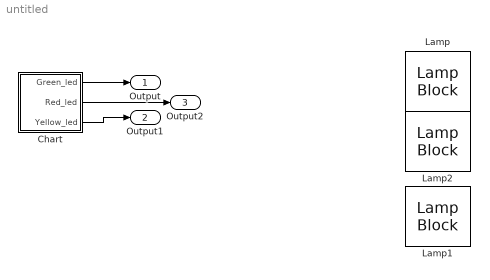
== stateflow chart untitled/Chart ==
  state Yellow
    en:
    Yellow_led=1;
    Red_led=0;
    Green_led=0;
    du:
    Yellow_led=1;
    ex:
    Yellow_led=0;
  state Red
    en:
    Red_led=1;
    Yellow_led=0;
    Green_led=0;
    du:
    Red_led=1;
    ex:
    Red_led=0;
  state Green
    en:
    Green_led=1;
    Red_led=0;
    Yellow_led=0;
    du:
    Green_led=1;
    ex:
    Green_led=0;
  (default) -> Red
  Red -> Yellow : [after(3,sec)]
  Green -> Red : [after(3,sec)]
  Yellow -> Green : [after(3,sec)]
  data: Green_led output double; Red_led output double; Yellow_led output double

/*
 * File: untitled.c
 *
 * Code generated for Simulink model 'untitled'.
 *
 * Model version                  : 1.6
 * Simulink Coder version         : 9.0 (R2018b) 24-May-2018
 * C/C++ source code generated on : Fri Mar 11 03:16:13 2022
 *
 * Target selection: ert.tlc
 * Embedded hardware selection: Intel->x86-64 (Windows64)
 * Code generation objectives: Unspecified
 * Validation result: Not run
 */

#include "untitled.h"
#include "untitled_private.h"

/* Named constants for Chart: '<Root>/Chart' */
#define untitled_IN_Green              ((uint8_T)1U)
#define untitled_IN_NO_ACTIVE_CHILD    ((uint8_T)0U)
#define untitled_IN_Red                ((uint8_T)2U)
#define untitled_IN_Yellow             ((uint8_T)3U)

/* Block states (default storage) */
DW_untitled_T untitled_DW;

/* External outputs (root outports fed by signals with default storage) */
ExtY_untitled_T untitled_Y;

/* Real-time model */
RT_MODEL_untitled_T untitled_M_;
RT_MODEL_untitled_T *const untitled_M = &untitled_M_;

/* Model step function */
void untitled_step(void)
{
  /* Chart: '<Root>/Chart' */
  if (untitled_DW.temporalCounter_i1 < 31U) {
    untitled_DW.temporalCounter_i1++;
  }

  if (untitled_DW.is_active_c3_untitled == 0U) {
    untitled_DW.is_active_c3_untitled = 1U;
    untitled_DW.is_c3_untitled = untitled_IN_Red;
    untitled_DW.temporalCounter_i1 = 0U;

    /* Outport: '<Root>/Output2' */
    untitled_Y.Output2 = 1.0;

    /* Outport: '<Root>/Output1' */
    untitled_Y.Output1 = 0.0;

    /* Outport: '<Root>/Output' */
    untitled_Y.Output = 0.0;
  } else {
    switch (untitled_DW.is_c3_untitled) {
     case untitled_IN_Green:
      if (untitled_DW.temporalCounter_i1 >= 15U) {
        untitled_DW.is_c3_untitled = untitled_IN_Red;
        untitled_DW.temporalCounter_i1 = 0U;

        /* Outport: '<Root>/Output2' */
        untitled_Y.Output2 = 1.0;

        /* Outport: '<Root>/Output1' */
        untitled_Y.Output1 = 0.0;

        /* Outport: '<Root>/Output' */
        untitled_Y.Output = 0.0;
      } else {
        /* Outport: '<Root>/Output' */
        untitled_Y.Output = 1.0;
      }
      break;

     case untitled_IN_Red:
      if (untitled_DW.temporalCounter_i1 >= 15U) {
        untitled_DW.is_c3_untitled = untitled_IN_Yellow;
        untitled_DW.temporalCounter_i1 = 0U;

        /* Outport: '<Root>/Output1' */
        untitled_Y.Output1 = 1.0;

        /* Outport: '<Root>/Output2' */
        untitled_Y.Output2 = 0.0;

        /* Outport: '<Root>/Output' */
        untitled_Y.Output = 0.0;
      } else {
        /* Outport: '<Root>/Output2' */
        untitled_Y.Output2 = 1.0;
      }
      break;

     default:
      if (untitled_DW.temporalCounter_i1 >= 15U) {
        untitled_DW.is_c3_untitled = untitled_IN_Green;
        untitled_DW.temporalCounter_i1 = 0U;

        /* Outport: '<Root>/Output' */
        untitled_Y.Output = 1.0;

        /* Outport: '<Root>/Output2' */
        untitled_Y.Output2 = 0.0;

        /* Outport: '<Root>/Output1' */
        untitled_Y.Output1 = 0.0;
      } else {
        /* Outport: '<Root>/Output1' */
        untitled_Y.Output1 = 1.0;
      }
      break;
    }
  }

  /* End of Chart: '<Root>/Chart' */
}
